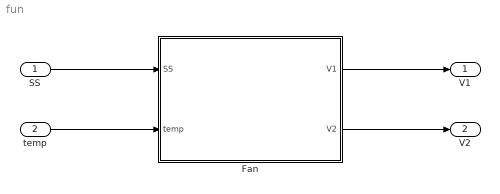
== stateflow chart fun/Fan ==
  state On
    state RightLow
      entry:
      V1  = temp - 20;
      V2 = 10;
    state RighHigh
      entry:
      V1  = temp - 20;
      V2 = 20;
    state LeftLow
      entry:
      V1  = temp - 20;
      V2 = -10;
    state LeftHigh
      entry:
      V1  = temp - 20;
      V2 = -20;
    (default) -> RightLow
    RighHigh -> RighHigh [order 3] : {counter = counter + 1}
    RightLow -> RighHigh [order 1] : [SS == 1]
    RightLow -> RightLow [order 3] : {counter = counter +1}
    RighHigh -> RightLow [order 1] : [SS == 0]
    RightLow -> LeftLow [order 2] : [counter >= 10]{counter = 0}
    LeftLow -> RightLow [order 2] : [counter >= 10]{counter = 0}
    LeftHigh -> RighHigh [order 1] : [counter >= 5]{counter = 0}
    RighHigh -> LeftHigh [order 2] : [counter >= 5]{counter = 0}
    LeftLow -> LeftHigh [order 1] : [SS == 1]
    LeftLow -> LeftLow [order 3] : {counter = counter + 1}
    LeftHigh -> LeftHigh [order 3] : {counter = counter +1}
    LeftHigh -> LeftLow [order 2] : [SS == 0]
  state Off
    entry:
    V1 = 0;
    V2 = 0;
    counter = 0;
  (default) -> Off
  Off -> On : [temp > 20]
  On -> Off : [temp <= 20]
  data: V1 output; V2 output; SS input; counter local; temp input

//
// File: fun.cpp
//
// Code generated for Simulink model 'fun'.
//
// Model version                  : 1.7
// Simulink Coder version         : 23.2 (R2023b) 01-Aug-2023
// C/C++ source code generated on : Sat Dec 14 01:36:07 2024
//
// Target selection: ert.tlc
// Embedded hardware selection: Intel->x86-64 (Windows64)
// Code generation objectives: Unspecified
// Validation result: Not run
//
#include "fun.h"
#include "rtwtypes.h"
#include <cstring>

// Named constants for Chart: '<Root>/Fan'
const uint8_T fun_IN_LeftHigh{ 1U };

const uint8_T fun_IN_LeftLow{ 2U };

const uint8_T fun_IN_NO_ACTIVE_CHILD{ 0U };

const uint8_T fun_IN_Off{ 1U };

const uint8_T fun_IN_On{ 2U };

const uint8_T fun_IN_RighHigh{ 3U };

const uint8_T fun_IN_RightLow{ 4U };

// Model step function
void fun_step(RT_MODEL_fun_T *const fun_M, ExtU_fun_T *fun_U, ExtY_fun_T *fun_Y)
{
  DW_fun_T *fun_DW{ fun_M->dwork };

  // Chart: '<Root>/Fan'
  if (fun_DW->is_active_c3_fun == 0U) {
    fun_DW->is_active_c3_fun = 1U;
    fun_DW->is_c3_fun = fun_IN_Off;

    // Outport: '<Root>/V1'
    fun_Y->V1 = 0.0;

    // Outport: '<Root>/V2'
    fun_Y->V2 = 0.0;
    fun_DW->counter = 0.0;
  } else if (fun_DW->is_c3_fun == fun_IN_Off) {
    // Outport: '<Root>/V2'
    fun_Y->V2 = 0.0;
    if (fun_U->temp > 20.0) {
      fun_DW->is_c3_fun = fun_IN_On;
      fun_DW->is_On = fun_IN_RightLow;

      // Outport: '<Root>/V1'
      fun_Y->V1 = fun_U->temp - 20.0;

      // Outport: '<Root>/V2'
      fun_Y->V2 = 10.0;
    }

    // case IN_On:
  } else if (fun_U->temp <= 20.0) {
    fun_DW->is_On = fun_IN_NO_ACTIVE_CHILD;
    fun_DW->is_c3_fun = fun_IN_Off;

    // Outport: '<Root>/V1'
    fun_Y->V1 = 0.0;

    // Outport: '<Root>/V2'
    fun_Y->V2 = 0.0;
    fun_DW->counter = 0.0;
  } else {
    switch (fun_DW->is_On) {
     case fun_IN_LeftHigh:
      if (fun_DW->counter >= 5.0) {
        fun_DW->counter = 0.0;
        fun_DW->is_On = fun_IN_RighHigh;

        // Outport: '<Root>/V1'
        fun_Y->V1 = fun_U->temp - 20.0;

        // Outport: '<Root>/V2'
        fun_Y->V2 = 20.0;
      } else if (fun_U->SS == 0.0) {
        fun_DW->is_On = fun_IN_LeftLow;

        // Outport: '<Root>/V1'
        fun_Y->V1 = fun_U->temp - 20.0;

        // Outport: '<Root>/V2'
        fun_Y->V2 = -10.0;
      } else {
        fun_DW->counter++;
        fun_DW->is_On = fun_IN_LeftHigh;

        // Outport: '<Root>/V1'
        fun_Y->V1 = fun_U->temp - 20.0;

        // Outport: '<Root>/V2'
        fun_Y->V2 = -20.0;
      }
      break;

     case fun_IN_LeftLow:
      if (fun_U->SS == 1.0) {
        fun_DW->is_On = fun_IN_LeftHigh;

        // Outport: '<Root>/V1'
        fun_Y->V1 = fun_U->temp - 20.0;

        // Outport: '<Root>/V2'
        fun_Y->V2 = -20.0;
      } else if (fun_DW->counter >= 10.0) {
        fun_DW->counter = 0.0;
        fun_DW->is_On = fun_IN_RightLow;

        // Outport: '<Root>/V1'
        fun_Y->V1 = fun_U->temp - 20.0;

        // Outport: '<Root>/V2'
        fun_Y->V2 = 10.0;
      } else {
        fun_DW->counter++;
        fun_DW->is_On = fun_IN_LeftLow;

        // Outport: '<Root>/V1'
        fun_Y->V1 = fun_U->temp - 20.0;

        // Outport: '<Root>/V2'
        fun_Y->V2 = -10.0;
      }
      break;

     case fun_IN_RighHigh:
      if (fun_U->SS == 0.0) {
        fun_DW->is_On = fun_IN_RightLow;

        // Outport: '<Root>/V1'
        fun_Y->V1 = fun_U->temp - 20.0;

        // Outport: '<Root>/V2'
        fun_Y->V2 = 10.0;
      } else if (fun_DW->counter >= 5.0) {
        fun_DW->counter = 0.0;
        fun_DW->is_On = fun_IN_LeftHigh;

        // Outport: '<Root>/V1'
        fun_Y->V1 = fun_U->temp - 20.0;

        // Outport: '<Root>/V2'
        fun_Y->V2 = -20.0;
      } else {
        fun_DW->counter++;
        fun_DW->is_On = fun_IN_RighHigh;

        // Outport: '<Root>/V1'
        fun_Y->V1 = fun_U->temp - 20.0;

        // Outport: '<Root>/V2'
        fun_Y->V2 = 20.0;
      }
      break;

     default:
      // case IN_RightLow:
      if (fun_U->SS == 1.0) {
        fun_DW->is_On = fun_IN_RighHigh;

        // Outport: '<Root>/V1'
        fun_Y->V1 = fun_U->temp - 20.0;

        // Outport: '<Root>/V2'
        fun_Y->V2 = 20.0;
      } else if (fun_DW->counter >= 10.0) {
        fun_DW->counter = 0.0;
        fun_DW->is_On = fun_IN_LeftLow;

        // Outport: '<Root>/V1'
        fun_Y->V1 = fun_U->temp - 20.0;

        // Outport: '<Root>/V2'
        fun_Y->V2 = -10.0;
      } else {
        fun_DW->counter++;
        fun_DW->is_On = fun_IN_RightLow;

        // Outport: '<Root>/V1'
        fun_Y->V1 = fun_U->temp - 20.0;

        // Outport: '<Root>/V2'
        fun_Y->V2 = 10.0;
      }
      break;
    }
  }

  // End of Chart: '<Root>/Fan'
}
